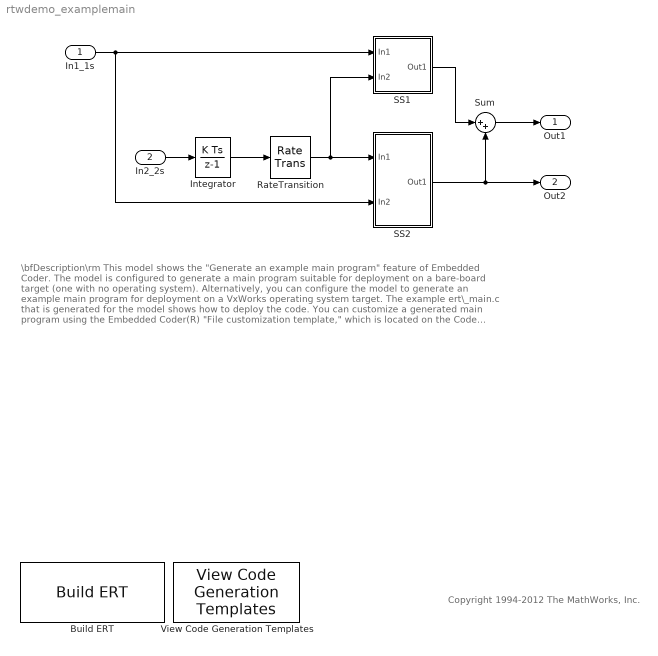
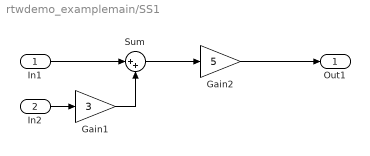
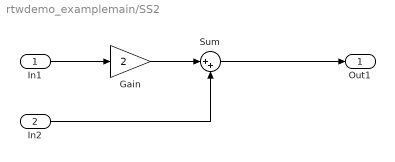
/*
 * Academic License - for use in teaching, academic research, and meeting
 * course requirements at degree granting institutions only.  Not for
 * government, commercial, or other organizational use.
 *
 * File: rtwdemo_examplemain.c
 *
 * Code generated for Simulink model 'rtwdemo_examplemain'.
 *
 * Model version                  : 1.138
 * Simulink Coder version         : 8.13 (R2017b) 24-Jul-2017
 * C/C++ source code generated on : Thu Jan 25 09:57:52 2018
 *
 * Target selection: ert.tlc
 * Embedded hardware selection: Specified
 * Code generation objectives: Unspecified
 * Validation result: Not run
 */

#include "rtwdemo_examplemain.h"

/* Block signals and states (auto storage) */
D_Work rtDWork;

/* External inputs (root inport signals with auto storage) */
ExternalInputs rtU;

/* External outputs (root outports fed by signals with auto storage) */
ExternalOutputs rtY;

/* Real-time model */
RT_MODEL rtM_;
RT_MODEL *const rtM = &rtM_;

/* Model step function for TID0 */
void rtwdemo_examplemain_step0(void)   /* Sample time: [1.0s, 0.0s] */
{
  /* Update the flag to indicate when data transfers from
   *  Sample time: [1.0s, 0.0s] to Sample time: [2.0s, 0.0s]  */
  (rtM->Timing.RateInteraction.TID0_1)++;
  if ((rtM->Timing.RateInteraction.TID0_1) > 1) {
    rtM->Timing.RateInteraction.TID0_1 = 0;
  }

  /* RateTransition: '<Root>/RateTransition' */
  if (rtM->Timing.RateInteraction.TID0_1 == 1) {
    rtDWork.RateTransition = rtDWork.RateTransition_Buffer0;
  }

  /* End of RateTransition: '<Root>/RateTransition' */

  /* Outputs for Atomic SubSystem: '<Root>/SS2' */
  /* Sum: '<S2>/Sum' incorporates:
   *  Gain: '<S2>/Gain'
   *  Inport: '<Root>/In1_1s'
   */
  rtY.Out2 = 2.0 * rtDWork.RateTransition + rtU.In1_1s;

  /* End of Outputs for SubSystem: '<Root>/SS2' */

  /* Outputs for Atomic SubSystem: '<Root>/SS1' */
  /* Outport: '<Root>/Out1' incorporates:
   *  Gain: '<S1>/Gain1'
   *  Gain: '<S1>/Gain2'
   *  Inport: '<Root>/In1_1s'
   *  Sum: '<Root>/Sum'
   *  Sum: '<S1>/Sum'
   */
  rtY.Out1 = (3.0 * rtDWork.RateTransition + rtU.In1_1s) * 5.0 + rtY.Out2;

  /* End of Outputs for SubSystem: '<Root>/SS1' */
}

/* Model step function for TID1 */
void rtwdemo_examplemain_step1(void)   /* Sample time: [2.0s, 0.0s] */
{
  /* Update for RateTransition: '<Root>/RateTransition' */
  rtDWork.RateTransition_Buffer0 = rtDWork.Integrator_DSTATE;

  /* Update for DiscreteIntegrator: '<Root>/Integrator' incorporates:
   *  Inport: '<Root>/In2_2s'
   */
  rtDWork.Integrator_DSTATE += 2.0 * rtU.In2_2s;
}
